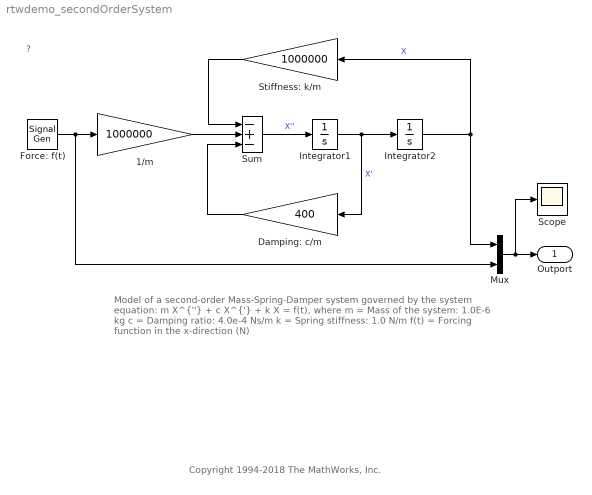
/*
 * rtwdemo_secondOrderSystem.c
 *
 * Academic License - for use in teaching, academic research, and meeting
 * course requirements at degree granting institutions only.  Not for
 * government, commercial, or other organizational use.
 *
 * Code generation for model "rtwdemo_secondOrderSystem".
 *
 * Model version              : 1.51
 * Simulink Coder version : 9.1 (R2019a) 23-Nov-2018
 * C source code generated on : Sat Dec 12 16:18:58 2020
 *
 * Target selection: grt.tlc
 * Note: GRT includes extra infrastructure and instrumentation for prototyping
 * Embedded hardware selection: Intel->x86-32 (Windows32)
 * Code generation objectives: Unspecified
 * Validation result: Not run
 */

#include "rtwdemo_secondOrderSystem.h"
#include "rtwdemo_secondOrderSystem_private.h"

/* Block signals (default storage) */
B_rtwdemo_secondOrderSystem_T rtwdemo_secondOrderSystem_B;

/* Continuous states */
X_rtwdemo_secondOrderSystem_T rtwdemo_secondOrderSystem_X;

/* Block states (default storage) */
DW_rtwdemo_secondOrderSystem_T rtwdemo_secondOrderSystem_DW;

/* External outputs (root outports fed by signals with default storage) */
ExtY_rtwdemo_secondOrderSyste_T rtwdemo_secondOrderSystem_Y;

/* Real-time model */
RT_MODEL_rtwdemo_secondOrderS_T rtwdemo_secondOrderSystem_M_;
RT_MODEL_rtwdemo_secondOrderS_T *const rtwdemo_secondOrderSystem_M =
  &rtwdemo_secondOrderSystem_M_;

/*
 * This function updates continuous states using the ODE3 fixed-step
 * solver algorithm
 */
static void rt_ertODEUpdateContinuousStates(RTWSolverInfo *si )
{
  /* Solver Matrices */
  static const real_T rt_ODE3_A[3] = {
    1.0/2.0, 3.0/4.0, 1.0
  };

  static const real_T rt_ODE3_B[3][3] = {
    { 1.0/2.0, 0.0, 0.0 },

    { 0.0, 3.0/4.0, 0.0 },

    { 2.0/9.0, 1.0/3.0, 4.0/9.0 }
  };

  time_T t = rtsiGetT(si);
  time_T tnew = rtsiGetSolverStopTime(si);
  time_T h = rtsiGetStepSize(si);
  real_T *x = rtsiGetContStates(si);
  ODE3_IntgData *id = (ODE3_IntgData *)rtsiGetSolverData(si);
  real_T *y = id->y;
  real_T *f0 = id->f[0];
  real_T *f1 = id->f[1];
  real_T *f2 = id->f[2];
  real_T hB[3];
  int_T i;
  int_T nXc = 2;
  rtsiSetSimTimeStep(si,MINOR_TIME_STEP);

  /* Save the state values at time t in y, we'll use x as ynew. */
  (void) memcpy(y, x,
                (uint_T)nXc*sizeof(real_T));

  /* Assumes that rtsiSetT and ModelOutputs are up-to-date */
  /* f0 = f(t,y) */
  rtsiSetdX(si, f0);
  rtwdemo_secondOrderSystem_derivatives();

  /* f(:,2) = feval(odefile, t + hA(1), y + f*hB(:,1), args(:)(*)); */
  hB[0] = h * rt_ODE3_B[0][0];
  for (i = 0; i < nXc; i++) {
    x[i] = y[i] + (f0[i]*hB[0]);
  }

  rtsiSetT(si, t + h*rt_ODE3_A[0]);
  rtsiSetdX(si, f1);
  rtwdemo_secondOrderSystem_step();
  rtwdemo_secondOrderSystem_derivatives();

  /* f(:,3) = feval(odefile, t + hA(2), y + f*hB(:,2), args(:)(*)); */
  for (i = 0; i <= 1; i++) {
    hB[i] = h * rt_ODE3_B[1][i];
  }

  for (i = 0; i < nXc; i++) {
    x[i] = y[i] + (f0[i]*hB[0] + f1[i]*hB[1]);
  }

  rtsiSetT(si, t + h*rt_ODE3_A[1]);
  rtsiSetdX(si, f2);
  rtwdemo_secondOrderSystem_step();
  rtwdemo_secondOrderSystem_derivatives();

  /* tnew = t + hA(3);
     ynew = y + f*hB(:,3); */
  for (i = 0; i <= 2; i++) {
    hB[i] = h * rt_ODE3_B[2][i];
  }

  for (i = 0; i < nXc; i++) {
    x[i] = y[i] + (f0[i]*hB[0] + f1[i]*hB[1] + f2[i]*hB[2]);
  }

  rtsiSetT(si, tnew);
  rtsiSetSimTimeStep(si,MAJOR_TIME_STEP);
}

/* Model step function */
void rtwdemo_secondOrderSystem_step(void)
{
  real_T temp;
  if (rtmIsMajorTimeStep(rtwdemo_secondOrderSystem_M)) {
    /* set solver stop time */
    if (!(rtwdemo_secondOrderSystem_M->Timing.clockTick0+1)) {
      rtsiSetSolverStopTime(&rtwdemo_secondOrderSystem_M->solverInfo,
                            ((rtwdemo_secondOrderSystem_M->Timing.clockTickH0 +
        1) * rtwdemo_secondOrderSystem_M->Timing.stepSize0 * 4294967296.0));
    } else {
      rtsiSetSolverStopTime(&rtwdemo_secondOrderSystem_M->solverInfo,
                            ((rtwdemo_secondOrderSystem_M->Timing.clockTick0 + 1)
        * rtwdemo_secondOrderSystem_M->Timing.stepSize0 +
        rtwdemo_secondOrderSystem_M->Timing.clockTickH0 *
        rtwdemo_secondOrderSystem_M->Timing.stepSize0 * 4294967296.0));
    }
  }                                    /* end MajorTimeStep */

  /* Update absolute time of base rate at minor time step */
  if (rtmIsMinorTimeStep(rtwdemo_secondOrderSystem_M)) {
    rtwdemo_secondOrderSystem_M->Timing.t[0] = rtsiGetT
      (&rtwdemo_secondOrderSystem_M->solverInfo);
  }

  /* Integrator: '<Root>/Integrator2' */
  rtwdemo_secondOrderSystem_B.X = rtwdemo_secondOrderSystem_X.Integrator2_CSTATE;

  /* SignalGenerator: '<Root>/Force: f(t)' */
  temp = 20.0 * rtwdemo_secondOrderSystem_M->Timing.t[0];
  if (temp - floor(temp) >= 0.5) {
    rtwdemo_secondOrderSystem_B.Forceft = 4.0;
  } else {
    rtwdemo_secondOrderSystem_B.Forceft = -4.0;
  }

  /* End of SignalGenerator: '<Root>/Force: f(t)' */

  /* Outport: '<Root>/Outport' */
  rtwdemo_secondOrderSystem_Y.Outport[0] = rtwdemo_secondOrderSystem_B.X;
  rtwdemo_secondOrderSystem_Y.Outport[1] = rtwdemo_secondOrderSystem_B.Forceft;
  if (rtmIsMajorTimeStep(rtwdemo_secondOrderSystem_M)) {
  }

  /* Integrator: '<Root>/Integrator1' */
  rtwdemo_secondOrderSystem_B.X_h =
    rtwdemo_secondOrderSystem_X.Integrator1_CSTATE;

  /* Sum: '<Root>/Sum' incorporates:
   *  Gain: '<Root>/1//m'
   *  Gain: '<Root>/Damping: c//m'
   *  Gain: '<Root>/Stiffness: k//m'
   */
  rtwdemo_secondOrderSystem_B.X_p = (1.0E+6 *
    rtwdemo_secondOrderSystem_B.Forceft - 1.0E+6 * rtwdemo_secondOrderSystem_B.X)
    - 400.0 * rtwdemo_secondOrderSystem_B.X_h;
  if (rtmIsMajorTimeStep(rtwdemo_secondOrderSystem_M)) {
    /* Matfile logging */
    rt_UpdateTXYLogVars(rtwdemo_secondOrderSystem_M->rtwLogInfo,
                        (rtwdemo_secondOrderSystem_M->Timing.t));
  }                                    /* end MajorTimeStep */

  if (rtmIsMajorTimeStep(rtwdemo_secondOrderSystem_M)) {
    /* signal main to stop simulation */
    {                                  /* Sample time: [0.0s, 0.0s] */
      if ((rtmGetTFinal(rtwdemo_secondOrderSystem_M)!=-1) &&
          !((rtmGetTFinal(rtwdemo_secondOrderSystem_M)-
             (((rtwdemo_secondOrderSystem_M->Timing.clockTick1+
                rtwdemo_secondOrderSystem_M->Timing.clockTickH1* 4294967296.0)) *
              0.001)) > (((rtwdemo_secondOrderSystem_M->Timing.clockTick1+
                           rtwdemo_secondOrderSystem_M->Timing.clockTickH1*
                           4294967296.0)) * 0.001) * (DBL_EPSILON))) {
        rtmSetErrorStatus(rtwdemo_secondOrderSystem_M, "Simulation finished");
      }
    }

    rt_ertODEUpdateContinuousStates(&rtwdemo_secondOrderSystem_M->solverInfo);

    /* Update absolute time for base rate */
    /* The "clockTick0" counts the number of times the code of this task has
     * been executed. The absolute time is the multiplication of "clockTick0"
     * and "Timing.stepSize0". Size of "clockTick0" ensures timer will not
     * overflow during the application lifespan selected.
     * Timer of this task consists of two 32 bit unsigned integers.
     * The two integers represent the low bits Timing.clockTick0 and the high bits
     * Timing.clockTickH0. When the low bit overflows to 0, the high bits increment.
     */
    if (!(++rtwdemo_secondOrderSystem_M->Timing.clockTick0)) {
      ++rtwdemo_secondOrderSystem_M->Timing.clockTickH0;
    }

    rtwdemo_secondOrderSystem_M->Timing.t[0] = rtsiGetSolverStopTime
      (&rtwdemo_secondOrderSystem_M->solverInfo);

    {
      /* Update absolute timer for sample time: [0.001s, 0.0s] */
      /* The "clockTick1" counts the number of times the code of this task has
       * been executed. The resolution of this integer timer is 0.001, which is the step size
       * of the task. Size of "clockTick1" ensures timer will not overflow during the
       * application lifespan selected.
       * Timer of this task consists of two 32 bit unsigned integers.
       * The two integers represent the low bits Timing.clockTick1 and the high bits
       * Timing.clockTickH1. When the low bit overflows to 0, the high bits increment.
       */
      rtwdemo_secondOrderSystem_M->Timing.clockTick1++;
      if (!rtwdemo_secondOrderSystem_M->Timing.clockTick1) {
        rtwdemo_secondOrderSystem_M->Timing.clockTickH1++;
      }
    }
  }                                    /* end MajorTimeStep */
}
